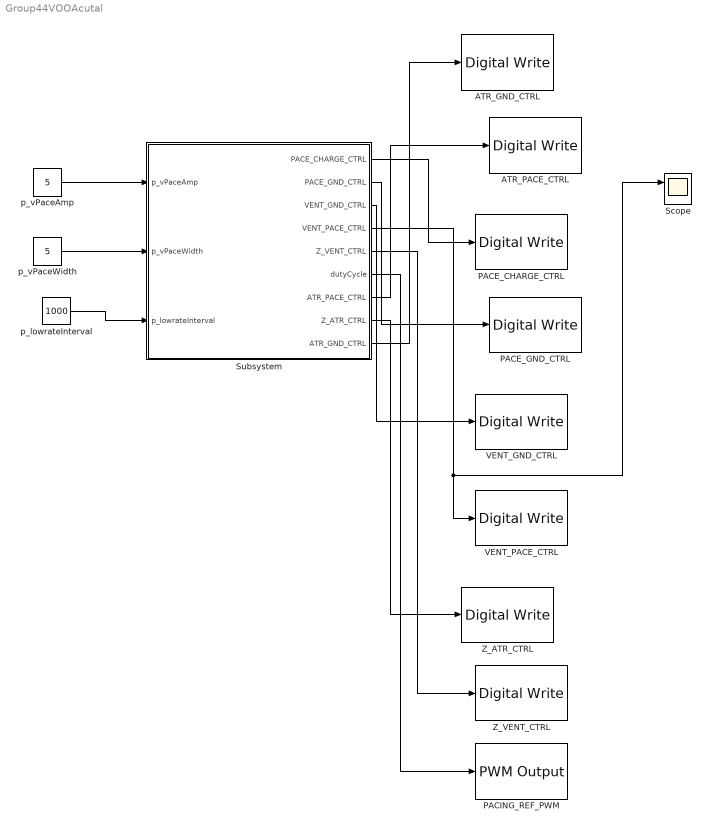
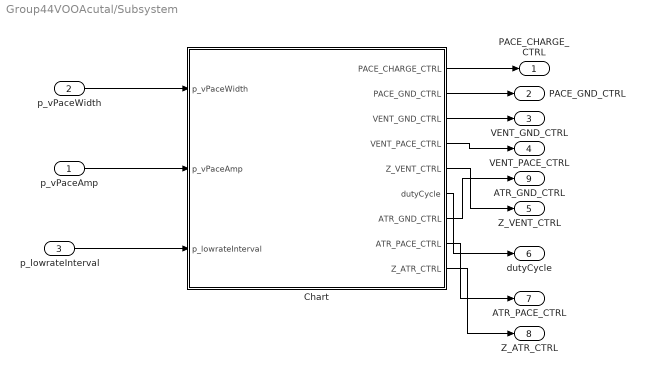
== stateflow chart Group44VOOAcutal/Subsystem/Chart ==
  state ChargeC22_Atrial_DischargeC21
    entry:
    ATR_PACE_CTRL = false;
    VENT_PACE_CTRL = false;
    VENT_GND_CTRL = true;
    PACE_CHARGE_CTRL = true;
    PACE_GND_CTRL = true;
    Z_ATR_CTRL = false;
    Z_VENT_CTRL = false;
    ATR_GND_CTRL = false;
    dutyCycle=p_vPaceAmp/5.0*100
  state PaceAtria
    entry:
    PACE_CHARGE_CTRL = false;
    PACE_GND_CTRL = true;
    ATR_PACE_CTRL = false;
    ATR_GND_CTRL = false;
    Z_ATR_CTRL = false;
    Z_VENT_CTRL = false;
    VENT_GND_CTRL = false;
    VENT_PACE_CTRL = true;
    %natPaceDetected=false;
  (default) -> ChargeC22_Atrial_DischargeC21
  ChargeC22_Atrial_DischargeC21 -> PaceAtria : after(p_lowrateInterval-p_vPaceWidth,msec)
  PaceAtria -> ChargeC22_Atrial_DischargeC21 : after(p_vPaceWidth,msec)
  data: p_lowrateInterval input double; PACE_CHARGE_CTRL output boolean; PACE_GND_CTRL output boolean; VENT_GND_CTRL output boolean; VENT_PACE_CTRL output boolean; Z_VENT_CTRL output boolean; dutyCycle output double; p_vPaceWidth input double; p_vPaceAmp input double; ATR_GND_CTRL output; ATR_PACE_CTRL output; Z_ATR_CTRL output

/*
 * Academic License - for use in teaching, academic research, and meeting
 * course requirements at degree granting institutions only.  Not for
 * government, commercial, or other organizational use.
 *
 * File: Group44VOOAcutal.c
 *
 * Code generated for Simulink model 'Group44VOOAcutal'.
 *
 * Model version                  : 1.9
 * Simulink Coder version         : 9.8 (R2022b) 13-May-2022
 * C/C++ source code generated on : Mon Oct 17 18:33:36 2022
 *
 * Target selection: ert.tlc
 * Embedded hardware selection: ARM Compatible->ARM Cortex
 * Code generation objectives: Unspecified
 * Validation result: Not run
 */

#include "Group44VOOAcutal.h"
#include "rtwtypes.h"
#include <math.h>
#include "Group44VOOAcutal_types.h"

/* Named constants for Chart: '<S1>/Chart' */
#define Group44VOOAcutal_IN_PaceAtria  ((uint8_T)2U)
#define IN_ChargeC22_Atrial_DischargeC2 ((uint8_T)1U)

/* Block signals (default storage) */
B_Group44VOOAcutal_T Group44VOOAcutal_B;

/* Block states (default storage) */
DW_Group44VOOAcutal_T Group44VOOAcutal_DW;

/* Real-time model */
static RT_MODEL_Group44VOOAcutal_T Group44VOOAcutal_M_;
RT_MODEL_Group44VOOAcutal_T *const Group44VOOAcutal_M = &Group44VOOAcutal_M_;

/* Model step function */
void Group44VOOAcutal_step(void)
{
  boolean_T rtb_PACE_CHARGE_CTRL;
  boolean_T rtb_VENT_GND_CTRL;
  boolean_T rtb_VENT_PACE_CTRL;

  /* Chart: '<S1>/Chart' incorporates:
   *  Constant: '<Root>/p_lowrateInterval'
   *  Constant: '<Root>/p_vPaceAmp'
   *  Constant: '<Root>/p_vPaceWidth'
   */
  if (Group44VOOAcutal_DW.temporalCounter_i1 < MAX_uint32_T) {
    Group44VOOAcutal_DW.temporalCounter_i1++;
  }

  if (Group44VOOAcutal_DW.is_active_c3_Group44VOOAcutal == 0U) {
    Group44VOOAcutal_DW.is_active_c3_Group44VOOAcutal = 1U;
    Group44VOOAcutal_DW.is_c3_Group44VOOAcutal = IN_ChargeC22_Atrial_DischargeC2;
    Group44VOOAcutal_DW.temporalCounter_i1 = 0U;
    rtb_VENT_PACE_CTRL = false;
    rtb_VENT_GND_CTRL = true;
    rtb_PACE_CHARGE_CTRL = true;
    Group44VOOAcutal_B.dutyCycle = Group44VOOAcutal_P.p_vPaceAmp_Value / 5.0 *
      100.0;
  } else if (Group44VOOAcutal_DW.is_c3_Group44VOOAcutal ==
             IN_ChargeC22_Atrial_DischargeC2) {
    rtb_VENT_PACE_CTRL = false;
    rtb_VENT_GND_CTRL = true;
    rtb_PACE_CHARGE_CTRL = true;
    if (Group44VOOAcutal_DW.temporalCounter_i1 >= (uint32_T)ceil
        (Group44VOOAcutal_P.p_lowrateInterval_Value -
         Group44VOOAcutal_P.p_vPaceWidth_Value)) {
      Group44VOOAcutal_DW.is_c3_Group44VOOAcutal = Group44VOOAcutal_IN_PaceAtria;
      Group44VOOAcutal_DW.temporalCounter_i1 = 0U;
      rtb_PACE_CHARGE_CTRL = false;
      rtb_VENT_GND_CTRL = false;
      rtb_VENT_PACE_CTRL = true;
    }
  } else {
    /* case IN_PaceAtria: */
    rtb_PACE_CHARGE_CTRL = false;
    rtb_VENT_GND_CTRL = false;
    rtb_VENT_PACE_CTRL = true;
    if (Group44VOOAcutal_DW.temporalCounter_i1 >= (uint32_T)ceil
        (Group44VOOAcutal_P.p_vPaceWidth_Value)) {
      Group44VOOAcutal_DW.is_c3_Group44VOOAcutal =
        IN_ChargeC22_Atrial_DischargeC2;
      Group44VOOAcutal_DW.temporalCounter_i1 = 0U;
      rtb_VENT_PACE_CTRL = false;
      rtb_VENT_GND_CTRL = true;
      rtb_PACE_CHARGE_CTRL = true;
      Group44VOOAcutal_B.dutyCycle = Group44VOOAcutal_P.p_vPaceAmp_Value / 5.0 *
        100.0;
    }
  }

  /* End of Chart: '<S1>/Chart' */

  /* MATLABSystem: '<Root>/ATR_GND_CTRL' */
  MW_digitalIO_write(Group44VOOAcutal_DW.obj_o.MW_DIGITALIO_HANDLE, false);

  /* MATLABSystem: '<Root>/ATR_PACE_CTRL' */
  MW_digitalIO_write(Group44VOOAcutal_DW.obj_m.MW_DIGITALIO_HANDLE, false);

  /* MATLABSystem: '<Root>/PACE_CHARGE_CTRL' */
  MW_digitalIO_write(Group44VOOAcutal_DW.obj_c.MW_DIGITALIO_HANDLE,
                     rtb_PACE_CHARGE_CTRL);

  /* MATLABSystem: '<Root>/PACE_GND_CTRL' */
  MW_digitalIO_write(Group44VOOAcutal_DW.obj_k.MW_DIGITALIO_HANDLE, true);

  /* MATLABSystem: '<Root>/PACING_REF_PWM' */
  MW_PWM_SetDutyCycle(Group44VOOAcutal_DW.obj_p.MW_PWM_HANDLE,
                      Group44VOOAcutal_B.dutyCycle);

  /* MATLABSystem: '<Root>/VENT_GND_CTRL' */
  MW_digitalIO_write(Group44VOOAcutal_DW.obj_gy.MW_DIGITALIO_HANDLE,
                     rtb_VENT_GND_CTRL);

  /* MATLABSystem: '<Root>/VENT_PACE_CTRL' */
  MW_digitalIO_write(Group44VOOAcutal_DW.obj_e.MW_DIGITALIO_HANDLE,
                     rtb_VENT_PACE_CTRL);

  /* MATLABSystem: '<Root>/Z_ATR_CTRL' */
  MW_digitalIO_write(Group44VOOAcutal_DW.obj_g.MW_DIGITALIO_HANDLE, false);

  /* MATLABSystem: '<Root>/Z_VENT_CTRL' */
  MW_digitalIO_write(Group44VOOAcutal_DW.obj.MW_DIGITALIO_HANDLE, false);
}
